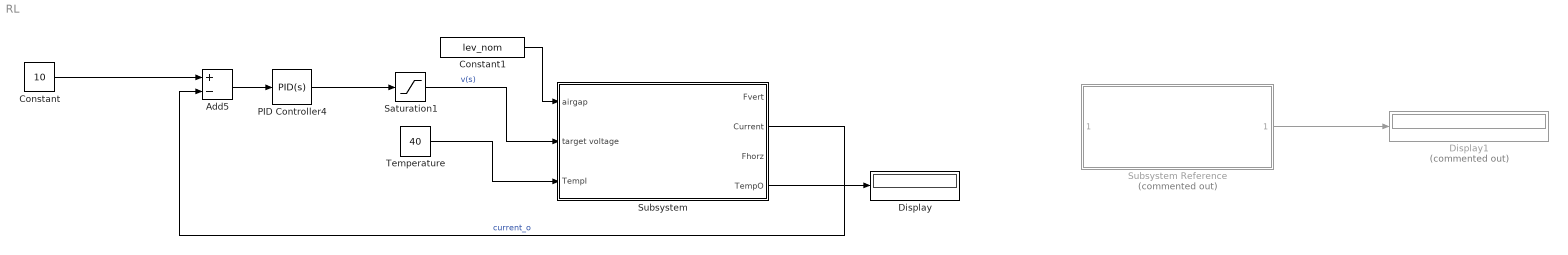
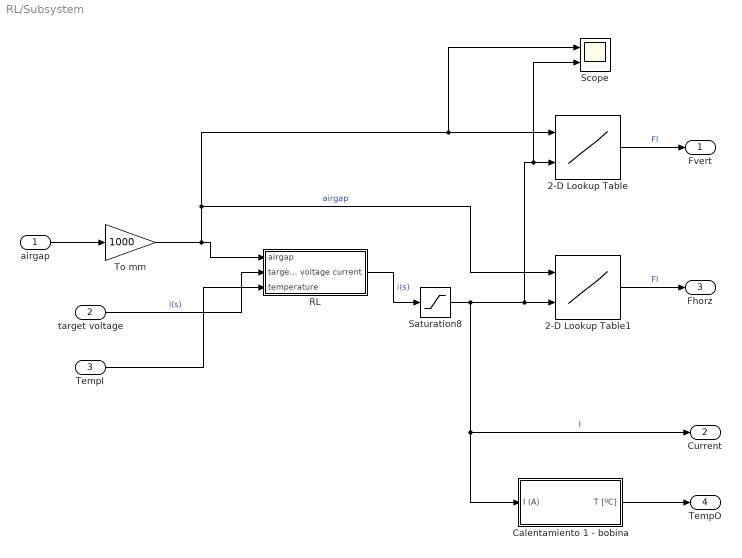
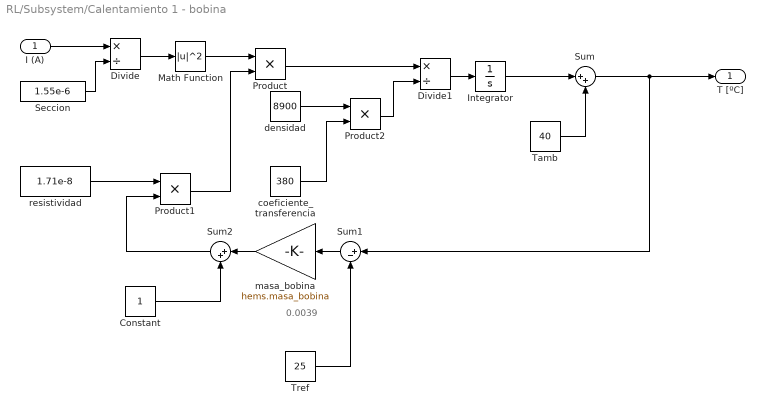
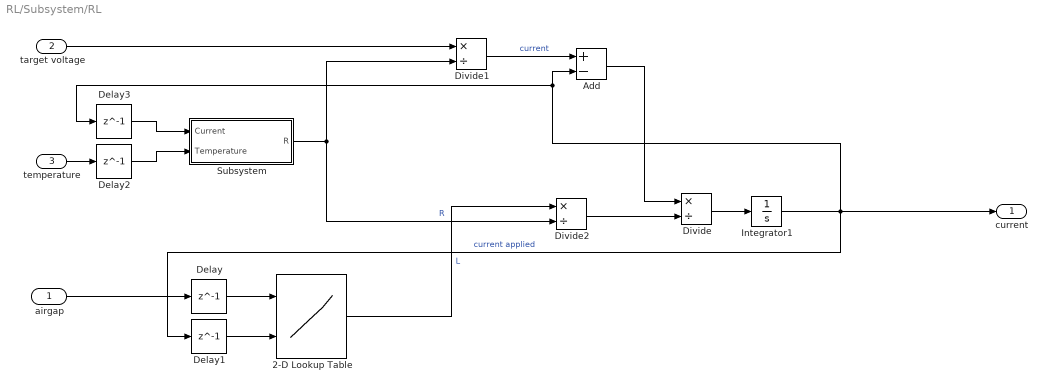
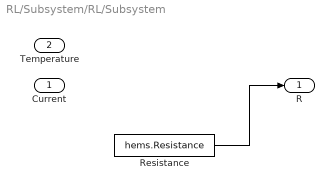
/*
 * RL.cpp
 *
 * Academic License - for use in teaching, academic research, and meeting
 * course requirements at degree granting institutions only.  Not for
 * government, commercial, or other organizational use.
 *
 * Code generation for model "RL".
 *
 * Model version              : 1.67
 * Simulink Coder version : 9.8 (R2022b) 13-May-2022
 * C++ source code generated on : Tue Apr  4 14:16:31 2023
 *
 * Target selection: slrealtime.tlc
 * Note: GRT includes extra infrastructure and instrumentation for prototyping
 * Embedded hardware selection: Intel->x86-64 (Linux 64)
 * Code generation objectives: Unspecified
 * Validation result: Not run
 */

#include "RL.h"
#include "rtwtypes.h"
#include "RL_private.h"
#include <cstring>

/* Block signals (default storage) */
B_RL_T RL_B;

/* Continuous states */
X_RL_T RL_X;

/* Block states (default storage) */
DW_RL_T RL_DW;

/* Real-time model */
RT_MODEL_RL_T RL_M_ = RT_MODEL_RL_T();
RT_MODEL_RL_T *const RL_M = &RL_M_;
real_T look2_binlxpw(real_T u0, real_T u1, const real_T bp0[], const real_T bp1[],
                     const real_T table[], const uint32_T maxIndex[], uint32_T
                     stride)
{
  real_T fractions[2];
  real_T frac;
  real_T yL_0d0;
  real_T yL_0d1;
  uint32_T bpIndices[2];
  uint32_T bpIdx;
  uint32_T iLeft;
  uint32_T iRght;

  /* Column-major Lookup 2-D
     Search method: 'binary'
     Use previous index: 'off'
     Interpolation method: 'Linear point-slope'
     Extrapolation method: 'Linear'
     Use last breakpoint for index at or above upper limit: 'off'
     Remove protection against out-of-range input in generated code: 'off'
   */
  /* Prelookup - Index and Fraction
     Index Search method: 'binary'
     Extrapolation method: 'Linear'
     Use previous index: 'off'
     Use last breakpoint for index at or above upper limit: 'off'
     Remove protection against out-of-range input in generated code: 'off'
   */
  if (u0 <= bp0[0U]) {
    iLeft = 0U;
    frac = (u0 - bp0[0U]) / (bp0[1U] - bp0[0U]);
  } else if (u0 < bp0[maxIndex[0U]]) {
    /* Binary Search */
    bpIdx = maxIndex[0U] >> 1U;
    iLeft = 0U;
    iRght = maxIndex[0U];
    while (iRght - iLeft > 1U) {
      if (u0 < bp0[bpIdx]) {
        iRght = bpIdx;
      } else {
        iLeft = bpIdx;
      }

      bpIdx = (iRght + iLeft) >> 1U;
    }

    frac = (u0 - bp0[iLeft]) / (bp0[iLeft + 1U] - bp0[iLeft]);
  } else {
    iLeft = maxIndex[0U] - 1U;
    frac = (u0 - bp0[maxIndex[0U] - 1U]) / (bp0[maxIndex[0U]] - bp0[maxIndex[0U]
      - 1U]);
  }

  fractions[0U] = frac;
  bpIndices[0U] = iLeft;

  /* Prelookup - Index and Fraction
     Index Search method: 'binary'
     Extrapolation method: 'Linear'
     Use previous index: 'off'
     Use last breakpoint for index at or above upper limit: 'off'
     Remove protection against out-of-range input in generated code: 'off'
   */
  if (u1 <= bp1[0U]) {
    iLeft = 0U;
    frac = (u1 - bp1[0U]) / (bp1[1U] - bp1[0U]);
  } else if (u1 < bp1[maxIndex[1U]]) {
    /* Binary Search */
    bpIdx = maxIndex[1U] >> 1U;
    iLeft = 0U;
    iRght = maxIndex[1U];
    while (iRght - iLeft > 1U) {
      if (u1 < bp1[bpIdx]) {
        iRght = bpIdx;
      } else {
        iLeft = bpIdx;
      }

      bpIdx = (iRght + iLeft) >> 1U;
    }

    frac = (u1 - bp1[iLeft]) / (bp1[iLeft + 1U] - bp1[iLeft]);
  } else {
    iLeft = maxIndex[1U] - 1U;
    frac = (u1 - bp1[maxIndex[1U] - 1U]) / (bp1[maxIndex[1U]] - bp1[maxIndex[1U]
      - 1U]);
  }

  /* Column-major Interpolation 2-D
     Interpolation method: 'Linear point-slope'
     Use last breakpoint for index at or above upper limit: 'off'
     Overflow mode: 'portable wrapping'
   */
  bpIdx = iLeft * stride + bpIndices[0U];
  yL_0d0 = table[bpIdx];
  yL_0d0 += (table[bpIdx + 1U] - yL_0d0) * fractions[0U];
  bpIdx += stride;
  yL_0d1 = table[bpIdx];
  return (((table[bpIdx + 1U] - yL_0d1) * fractions[0U] + yL_0d1) - yL_0d0) *
    frac + yL_0d0;
}

/*
 * This function updates continuous states using the ODE4 fixed-step
 * solver algorithm
 */
static void rt_ertODEUpdateContinuousStates(RTWSolverInfo *si )
{
  time_T t = rtsiGetT(si);
  time_T tnew = rtsiGetSolverStopTime(si);
  time_T h = rtsiGetStepSize(si);
  real_T *x = rtsiGetContStates(si);
  ODE4_IntgData *id = static_cast<ODE4_IntgData *>(rtsiGetSolverData(si));
  real_T *y = id->y;
  real_T *f0 = id->f[0];
  real_T *f1 = id->f[1];
  real_T *f2 = id->f[2];
  real_T *f3 = id->f[3];
  real_T temp;
  int_T i;
  int_T nXc = 4;
  rtsiSetSimTimeStep(si,MINOR_TIME_STEP);

  /* Save the state values at time t in y, we'll use x as ynew. */
  (void) std::memcpy(y, x,
                     static_cast<uint_T>(nXc)*sizeof(real_T));

  /* Assumes that rtsiSetT and ModelOutputs are up-to-date */
  /* f0 = f(t,y) */
  rtsiSetdX(si, f0);
  RL_derivatives();

  /* f1 = f(t + (h/2), y + (h/2)*f0) */
  temp = 0.5 * h;
  for (i = 0; i < nXc; i++) {
    x[i] = y[i] + (temp*f0[i]);
  }

  rtsiSetT(si, t + temp);
  rtsiSetdX(si, f1);
  RL_step();
  RL_derivatives();

  /* f2 = f(t + (h/2), y + (h/2)*f1) */
  for (i = 0; i < nXc; i++) {
    x[i] = y[i] + (temp*f1[i]);
  }

  rtsiSetdX(si, f2);
  RL_step();
  RL_derivatives();

  /* f3 = f(t + h, y + h*f2) */
  for (i = 0; i < nXc; i++) {
    x[i] = y[i] + (h*f2[i]);
  }

  rtsiSetT(si, tnew);
  rtsiSetdX(si, f3);
  RL_step();
  RL_derivatives();

  /* tnew = t + h
     ynew = y + (h/6)*(f0 + 2*f1 + 2*f2 + 2*f3) */
  temp = h / 6.0;
  for (i = 0; i < nXc; i++) {
    x[i] = y[i] + temp*(f0[i] + 2.0*f1[i] + 2.0*f2[i] + f3[i]);
  }

  rtsiSetSimTimeStep(si,MAJOR_TIME_STEP);
}

/* Model step function */
void RL_step(void)
{
  real_T tmp[109];
  real_T u0;
  real_T u1;
  real_T u2;
  if (rtmIsMajorTimeStep(RL_M)) {
    /* set solver stop time */
    if (!(RL_M->Timing.clockTick0+1)) {
      rtsiSetSolverStopTime(&RL_M->solverInfo, ((RL_M->Timing.clockTickH0 + 1) *
        RL_M->Timing.stepSize0 * 4294967296.0));
    } else {
      rtsiSetSolverStopTime(&RL_M->solverInfo, ((RL_M->Timing.clockTick0 + 1) *
        RL_M->Timing.stepSize0 + RL_M->Timing.clockTickH0 *
        RL_M->Timing.stepSize0 * 4294967296.0));
    }
  }                                    /* end MajorTimeStep */

  /* Update absolute time of base rate at minor time step */
  if (rtmIsMinorTimeStep(RL_M)) {
    RL_M->Timing.t[0] = rtsiGetT(&RL_M->solverInfo);
  }

  /* Integrator: '<S51>/Integrator' */
  RL_B.Integrator = RL_X.Integrator_CSTATE;

  /* Sum: '<S51>/Sum' incorporates:
   *  Constant: '<S51>/Tamb'
   */
  RL_B.Sum = RL_B.Integrator + RL_P.Tamb_Value;

  /* Integrator: '<S52>/Integrator1' */
  RL_B.currentapplied = RL_X.Integrator1_CSTATE;

  /* Saturate: '<S2>/Saturation8' */
  u0 = RL_B.currentapplied;
  u1 = RL_P.Saturation8_LowerSat;
  u2 = RL_P.Saturation8_UpperSat;
  if (u0 > u2) {
    /* Saturate: '<S2>/Saturation8' */
    RL_B.I = u2;
  } else if (u0 < u1) {
    /* Saturate: '<S2>/Saturation8' */
    RL_B.I = u1;
  } else {
    /* Saturate: '<S2>/Saturation8' */
    RL_B.I = u0;
  }

  /* End of Saturate: '<S2>/Saturation8' */
  if (rtmIsMajorTimeStep(RL_M)) {
  }

  /* Sum: '<Root>/Add5' incorporates:
   *  Constant: '<Root>/Constant'
   */
  RL_B.Add5 = RL_P.Constant_Value - RL_B.I;

  /* Gain: '<S28>/Derivative Gain' */
  RL_B.DerivativeGain = RL_P.PIDController4_D * RL_B.Add5;

  /* Integrator: '<S29>/Filter' */
  RL_B.Filter = RL_X.Filter_CSTATE;

  /* Sum: '<S29>/SumD' */
  RL_B.SumD = RL_B.DerivativeGain - RL_B.Filter;

  /* Gain: '<S31>/Integral Gain' */
  RL_B.IntegralGain = RL_P.PIDController4_I * RL_B.Add5;

  /* Integrator: '<S34>/Integrator' */
  RL_B.Integrator_l = RL_X.Integrator_CSTATE_d;

  /* Gain: '<S37>/Filter Coefficient' */
  RL_B.FilterCoefficient = RL_P.PIDController4_N * RL_B.SumD;

  /* Gain: '<S39>/Proportional Gain' */
  RL_B.ProportionalGain = RL_P.PIDController4_P * RL_B.Add5;

  /* Sum: '<S43>/Sum' */
  RL_B.Sum_f = (RL_B.ProportionalGain + RL_B.Integrator_l) +
    RL_B.FilterCoefficient;

  /* Saturate: '<Root>/Saturation1' */
  u0 = RL_B.Sum_f;
  u1 = RL_P.Saturation1_LowerSat;
  u2 = RL_P.Saturation1_UpperSat;
  if (u0 > u2) {
    /* Saturate: '<Root>/Saturation1' */
    RL_B.vs = u2;
  } else if (u0 < u1) {
    /* Saturate: '<Root>/Saturation1' */
    RL_B.vs = u1;
  } else {
    /* Saturate: '<Root>/Saturation1' */
    RL_B.vs = u0;
  }

  /* End of Saturate: '<Root>/Saturation1' */
  if (rtmIsMajorTimeStep(RL_M)) {
    /* Gain: '<S2>/To mm' incorporates:
     *  Constant: '<Root>/Constant1'
     */
    RL_B.airgap = RL_P.Tomm_Gain * RL_P.lev_nom;

    /* Product: '<S51>/Product2' incorporates:
     *  Constant: '<S51>/coeficiente_transferencia'
     *  Constant: '<S51>/densidad'
     */
    RL_B.Product2 = RL_P.densidad_Value * RL_P.coeficiente_transferencia_Value;
  }

  /* Lookup_n-D: '<S2>/2-D Lookup Table' incorporates:
   *  Gain: '<S2>/To mm'
   *  Saturate: '<S2>/Saturation8'
   */
  RL_B.Fl = look2_binlxpw(RL_B.airgap, RL_B.I, RL_P.uDLookupTable_bp01Data,
    RL_P.hems.Current, RL_P.hems.Force_Vertical, RL_P.uDLookupTable_maxIndex,
    14U);

  /* Lookup_n-D: '<S2>/2-D Lookup Table1' incorporates:
   *  Gain: '<S2>/To mm'
   *  Saturate: '<S2>/Saturation8'
   */
  RL_B.Fl_m = look2_binlxpw(RL_B.airgap, RL_B.I, RL_P.uDLookupTable1_bp01Data,
    RL_P.hems.Current, RL_P.hems.Force_Horizontal, RL_P.uDLookupTable1_maxIndex,
    14U);

  /* Product: '<S51>/Divide' incorporates:
   *  Constant: '<S51>/Seccion'
   */
  RL_B.Divide = RL_B.I / RL_P.Seccion_Value;

  /* Math: '<S51>/Math Function'
   *
   * About '<S51>/Math Function':
   *  Operator: magnitude^2
   */
  u0 = RL_B.Divide;

  /* Math: '<S51>/Math Function'
   *
   * About '<S51>/Math Function':
   *  Operator: magnitude^2
   */
  RL_B.MathFunction = u0 * u0;

  /* Sum: '<S51>/Sum1' incorporates:
   *  Constant: '<S51>/Tref'
   */
  RL_B.Sum1 = RL_B.Sum - RL_P.Tref_Value;

  /* Gain: '<S51>/masa_bobina' */
  RL_B.masa_bobina = RL_P.hems.masa_bobina * RL_B.Sum1;

  /* Sum: '<S51>/Sum2' incorporates:
   *  Constant: '<S51>/Constant'
   */
  RL_B.Sum2 = RL_B.masa_bobina + RL_P.Constant_Value_f;

  /* Product: '<S51>/Product1' incorporates:
   *  Constant: '<S51>/resistividad'
   */
  RL_B.Product1 = RL_P.resistividad_Value * RL_B.Sum2;

  /* Product: '<S51>/Product' */
  RL_B.Product = RL_B.MathFunction * RL_B.Product1;

  /* Product: '<S51>/Divide1' */
  RL_B.Divide1 = RL_B.Product / RL_B.Product2;
  if (rtmIsMajorTimeStep(RL_M)) {
    /* Delay: '<S52>/Delay' */
    RL_B.Delay = RL_DW.Delay_DSTATE;

    /* Delay: '<S52>/Delay1' */
    RL_B.Delay1 = RL_DW.Delay1_DSTATE;

    /* Lookup_n-D: '<S52>/2-D Lookup Table' */
    for (int32_T i = 0; i < 109; i++) {
      tmp[i] = RL_P.hems.Current[static_cast<int32_T>
        (RL_ConstP.uDLookupTable_rtw_collapsed_sub[i]) - 1];
    }

    /* Lookup_n-D: '<S52>/2-D Lookup Table' incorporates:
     *  Delay: '<S52>/Delay'
     *  Delay: '<S52>/Delay1'
     */
    RL_B.L = look2_binlxpw(RL_B.Delay, RL_B.Delay1, RL_P.hems.Airgap, tmp,
      RL_P.hems.Inductance, RL_P.uDLookupTable_maxIndex_d, 14U);
  }

  /* Product: '<S52>/Divide1' incorporates:
   *  Constant: '<S53>/Resistance'
   */
  RL_B.current = RL_B.vs / RL_P.hems.Resistance;

  /* Sum: '<S52>/Add' */
  RL_B.Add = RL_B.current - RL_B.currentapplied;
  if (rtmIsMajorTimeStep(RL_M)) {
    /* Delay: '<S52>/Delay2' */
    RL_B.Delay2 = RL_DW.Delay2_DSTATE;

    /* Delay: '<S52>/Delay3' */
    RL_B.Delay3 = RL_DW.Delay3_DSTATE;

    /* Product: '<S52>/Divide2' incorporates:
     *  Constant: '<S53>/Resistance'
     */
    RL_B.Divide2 = RL_B.L / RL_P.hems.Resistance;
  }

  /* Product: '<S52>/Divide' */
  RL_B.Divide_f = RL_B.Add / RL_B.Divide2;
  if (rtmIsMajorTimeStep(RL_M)) {
    if (rtmIsMajorTimeStep(RL_M)) {
      /* Update for Delay: '<S52>/Delay' */
      RL_DW.Delay_DSTATE = RL_B.airgap;

      /* Update for Delay: '<S52>/Delay1' */
      RL_DW.Delay1_DSTATE = RL_B.currentapplied;

      /* Update for Delay: '<S52>/Delay2' incorporates:
       *  Constant: '<Root>/Temperature'
       */
      RL_DW.Delay2_DSTATE = RL_P.Temperature_Value;

      /* Update for Delay: '<S52>/Delay3' */
      RL_DW.Delay3_DSTATE = RL_B.currentapplied;
    }
  }                                    /* end MajorTimeStep */

  if (rtmIsMajorTimeStep(RL_M)) {
    rt_ertODEUpdateContinuousStates(&RL_M->solverInfo);

    /* Update absolute time for base rate */
    /* The "clockTick0" counts the number of times the code of this task has
     * been executed. The absolute time is the multiplication of "clockTick0"
     * and "Timing.stepSize0". Size of "clockTick0" ensures timer will not
     * overflow during the application lifespan selected.
     * Timer of this task consists of two 32 bit unsigned integers.
     * The two integers represent the low bits Timing.clockTick0 and the high bits
     * Timing.clockTickH0. When the low bit overflows to 0, the high bits increment.
     */
    if (!(++RL_M->Timing.clockTick0)) {
      ++RL_M->Timing.clockTickH0;
    }

    RL_M->Timing.t[0] = rtsiGetSolverStopTime(&RL_M->solverInfo);

    {
      /* Update absolute timer for sample time: [0.00025s, 0.0s] */
      /* The "clockTick1" counts the number of times the code of this task has
       * been executed. The resolution of this integer timer is 0.00025, which is the step size
       * of the task. Size of "clockTick1" ensures timer will not overflow during the
       * application lifespan selected.
       * Timer of this task consists of two 32 bit unsigned integers.
       * The two integers represent the low bits Timing.clockTick1 and the high bits
       * Timing.clockTickH1. When the low bit overflows to 0, the high bits increment.
       */
      RL_M->Timing.clockTick1++;
      if (!RL_M->Timing.clockTick1) {
        RL_M->Timing.clockTickH1++;
      }
    }
  }                                    /* end MajorTimeStep */
}
